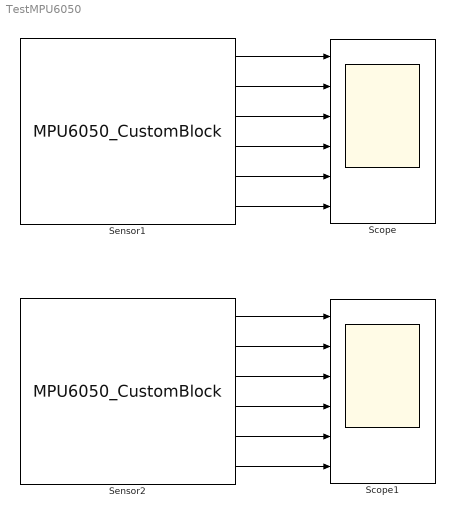
/*
 * Academic License - for use in teaching, academic research, and meeting
 * course requirements at degree granting institutions only.  Not for
 * government, commercial, or other organizational use.
 *
 * File: TestMPU6050.c
 *
 * Code generated for Simulink model 'TestMPU6050'.
 *
 * Model version                  : 1.3
 * Simulink Coder version         : 8.10 (R2016a) 10-Feb-2016
 * C/C++ source code generated on : Wed Aug 24 11:10:07 2016
 *
 * Target selection: ert.tlc
 * Embedded hardware selection: ARM Compatible->ARM Cortex
 * Code generation objectives: Unspecified
 * Validation result: Not run
 */

#include "TestMPU6050.h"
#include "TestMPU6050_private.h"
#include "TestMPU6050_dt.h"

/* Block signals (auto storage) */
B_TestMPU6050_T TestMPU6050_B;

/* Block states (auto storage) */
DW_TestMPU6050_T TestMPU6050_DW;

/* Real-time model */
RT_MODEL_TestMPU6050_T TestMPU6050_M_;
RT_MODEL_TestMPU6050_T *const TestMPU6050_M = &TestMPU6050_M_;

/* Model step function */
void TestMPU6050_step(void)
{
  /* S-Function (MPU6050_CustomBlock): '<Root>/Sensor1' */
  MPU6050_CustomBlock_Outputs_wrapper( &TestMPU6050_B.Sensor1_o1,
    &TestMPU6050_B.Sensor1_o2, &TestMPU6050_B.Sensor1_o3,
    &TestMPU6050_B.Sensor1_o4, &TestMPU6050_B.Sensor1_o5,
    &TestMPU6050_B.Sensor1_o6, &TestMPU6050_DW.Sensor1_DSTATE,
    &TestMPU6050_P.Sensor1_P1, 1, &TestMPU6050_P.Sensor1_P2, 1);

  /* S-Function (MPU6050_CustomBlock): '<Root>/Sensor2' */
  MPU6050_CustomBlock_Outputs_wrapper( &TestMPU6050_B.Sensor2_o1,
    &TestMPU6050_B.Sensor2_o2, &TestMPU6050_B.Sensor2_o3,
    &TestMPU6050_B.Sensor2_o4, &TestMPU6050_B.Sensor2_o5,
    &TestMPU6050_B.Sensor2_o6, &TestMPU6050_DW.Sensor2_DSTATE,
    &TestMPU6050_P.Sensor2_P1, 1, &TestMPU6050_P.Sensor2_P2, 1);

  /* S-Function "MPU6050_CustomBlock_wrapper" Block: <Root>/Sensor1 */
  MPU6050_CustomBlock_Update_wrapper( &TestMPU6050_B.Sensor1_o1,
    &TestMPU6050_B.Sensor1_o2, &TestMPU6050_B.Sensor1_o3,
    &TestMPU6050_B.Sensor1_o4, &TestMPU6050_B.Sensor1_o5,
    &TestMPU6050_B.Sensor1_o6, &TestMPU6050_DW.Sensor1_DSTATE,
    &TestMPU6050_P.Sensor1_P1, 1, &TestMPU6050_P.Sensor1_P2, 1);

  /* S-Function "MPU6050_CustomBlock_wrapper" Block: <Root>/Sensor2 */
  MPU6050_CustomBlock_Update_wrapper( &TestMPU6050_B.Sensor2_o1,
    &TestMPU6050_B.Sensor2_o2, &TestMPU6050_B.Sensor2_o3,
    &TestMPU6050_B.Sensor2_o4, &TestMPU6050_B.Sensor2_o5,
    &TestMPU6050_B.Sensor2_o6, &TestMPU6050_DW.Sensor2_DSTATE,
    &TestMPU6050_P.Sensor2_P1, 1, &TestMPU6050_P.Sensor2_P2, 1);

  /* External mode */
  rtExtModeUploadCheckTrigger(1);

  {                                    /* Sample time: [0.1s, 0.0s] */
    rtExtModeUpload(0, TestMPU6050_M->Timing.taskTime0);
  }

  /* signal main to stop simulation */
  {                                    /* Sample time: [0.1s, 0.0s] */
    if ((rtmGetTFinal(TestMPU6050_M)!=-1) &&
        !((rtmGetTFinal(TestMPU6050_M)-TestMPU6050_M->Timing.taskTime0) >
          TestMPU6050_M->Timing.taskTime0 * (DBL_EPSILON))) {
      rtmSetErrorStatus(TestMPU6050_M, "Simulation finished");
    }

    if (rtmGetStopRequested(TestMPU6050_M)) {
      rtmSetErrorStatus(TestMPU6050_M, "Simulation finished");
    }
  }

  /* Update absolute time for base rate */
  /* The "clockTick0" counts the number of times the code of this task has
   * been executed. The absolute time is the multiplication of "clockTick0"
   * and "Timing.stepSize0". Size of "clockTick0" ensures timer will not
   * overflow during the application lifespan selected.
   */
  TestMPU6050_M->Timing.taskTime0 =
    (++TestMPU6050_M->Timing.clockTick0) * TestMPU6050_M->Timing.stepSize0;
}
